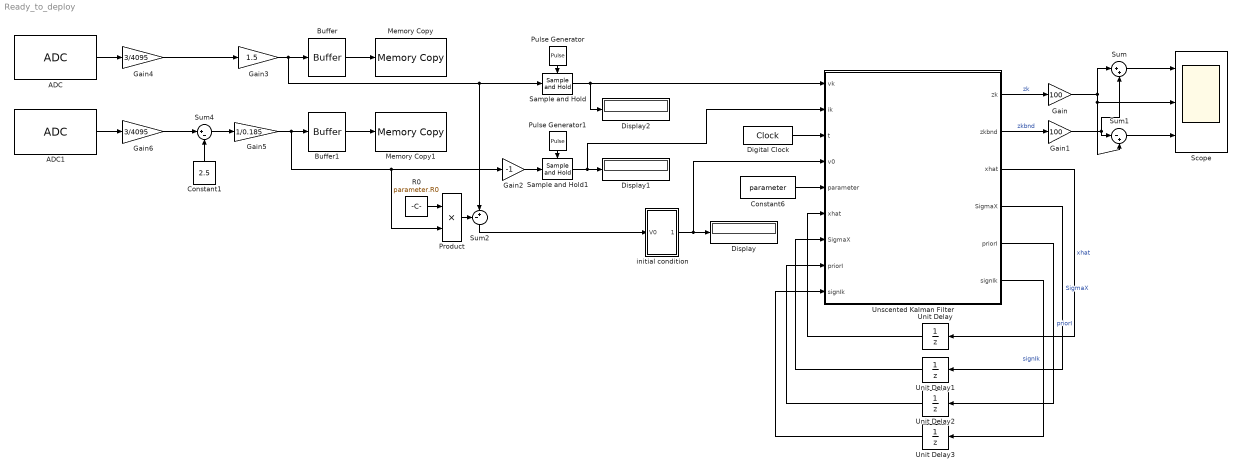
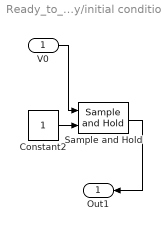
== matlab function Ready_to_deploy/Unscented Kalman Filter ==
function [zk,zkbnd,xhat,SigmaX,priorI,signIk] = iterSPKF(vk,ik,t,v0,parameter,xhat,SigmaX,priorI,signIk)
parameter.deltat=1e-1;
SigmaX0 = diag([1e-6 1e-8 2e-4]);
SigmaV = 2e-1;
SigmaW = 2e-1;
Snoise = chol(blkdiag(SigmaW,SigmaV),'lower');
irk0 = 0;
hk0 = 0;
zkInd = 1;
irkInd = 2;
hkInd = 3;
ocv=parameter.ocv;
soc=parameter.soc;
Nx = 3;
Nw = 1;
Nv = 1;
Na = Nx+Nw+Nv;
h = sqrt(3);
alpha1 = (h*h-Na)/(h*h);
alpha2 = 1/(2*h*h);
alpham = [alpha1; alpha2*ones(2*Na,1)];
alphac = alpham;
RC      = parameter.RC;
G       = parameter.G;
Q       = parameter.Q;
deltat  = parameter.deltat;
R0      = parameter.R0;
R       = parameter.R;
M0      = parameter.M0;
M       = parameter.M;
zkInd   = parameter.zkInd;
irkInd  = parameter.irkInd;
hkInd   = parameter.hkInd;

eta     = 1;
if ik<0 
ik=ik*eta;
end

if t<1e-4
j1=find(min(abs(ocv-v0))==abs(ocv-v0));
j=j1(1,:);
SOC0 = soc(j);
xhat = [SOC0;irk0;hk0];
SigmaX = SigmaX0;
priorI = 0;
signIk = 0;
end

I       =  priorI;
if abs(ik)>Q/100
signIk = sign(ik);
end
xhata = [xhat; zeros([Nw+Nv 1])];
sigmaXa = chol(SigmaX,'lower');
sigmaXa= blkdiag(sigmaXa,Snoise);
Xa = xhata(:,ones([1 2*Na+1])) + h*[zeros([Na 1]),sigmaXa,-sigmaXa];
Xx = stateEqn(Xa(1:Nx,:),I,Xa(Nx+1:Nx+Nw,:),parameter);
xhat = Xx*alpham;
Xs = Xx - xhat(:,ones([1 2*Na+1]));
SigmaX = Xs*diag(alphac)*Xs';
I = ik;
yk = vk;
Y = outputEqn(Xx,I,Xa(5,:),signIk,parameter);
yhat = Y*alpham;
Ys = Y - yhat(:,ones([1 2*Na+1]));
SigmaXY = Xs*diag(alphac)*Ys';
SigmaY = Ys*diag(alphac)*Ys';
L = SigmaXY/SigmaY;
ytelda = yk - yhat;
xhat = xhat + L*ytelda;
xhat(hkInd) = min(0.99,max(-0.99,xhat(hkInd)));
SigmaX = SigmaX - L*SigmaY*L';
priorI = ik;
zk = xhat(zkInd);
zkbnd = 3*sqrt(SigmaX(zkInd,zkInd));
function xnew = stateEqn(xold,current,xnoise,parameter)
current = current + xnoise;
RC      = parameter.RC;
G       = parameter.G;
Q       = parameter.Q;
deltat  = parameter.deltat;
zkInd   = parameter.zkInd;
irkInd  = parameter.irkInd;
hkInd   = parameter.hkInd;
Ah = exp(-abs(current*G*deltat/(3600*Q)));
xnew = 0*xold;
xnew(irkInd,:) = RC*xold(irkInd,:) + (1-RC)*current;
xnew(hkInd,:) = Ah.*xold(hkInd,:) + (Ah-1).*sign(current);
xnew(zkInd,:) = xold(zkInd,:) - current*deltat/(3600*Q);
end
function y = outputEqn(x,current,ynoise,signIk,parameter)
soc     = parameter.soc;
ocv     = parameter.ocv;
R0      = parameter.R0;
R       = parameter.R;
M0      = parameter.M0;
M       = parameter.M;
zkInd   = parameter.zkInd;
irkInd  = parameter.irkInd;
hkInd   = parameter.hkInd;
i = zeros(11,1);
for k=1:11
i2=find(min(abs(soc-x(zkInd,k)*ones(length(soc),1)))==abs(soc-x(zkInd,k)*ones(length(soc),1)));
i2(1)=min(1,max(length(soc),i2(1)));
i(k,1)=i2(1,1);
end
y = ocv(i)' - R * x(irkInd,:) - R0 * current + M * x(hkInd,:) + M0 * signIk + ynoise;
end
end

/*
 * File: Ready_to_deploy.c
 *
 * Code generated for Simulink model 'Ready_to_deploy'.
 *
 * Model version                  : 1.108
 * Simulink Coder version         : 9.3 (R2020a) 18-Nov-2019
 * C/C++ source code generated on : Tue May 11 03:15:02 2021
 *
 * Target selection: ert.tlc
 * Embedded hardware selection: Texas Instruments->C2000
 * Code generation objectives: Unspecified
 * Validation result: Not run
 */

#include "Ready_to_deploy.h"
#include "Ready_to_deploy_private.h"

/* Block signals (default storage) */
B_Ready_to_deploy_T Ready_to_deploy_B;

/* Block states (default storage) */
DW_Ready_to_deploy_T Ready_to_deploy_DW;

/* Previous zero-crossings (trigger) states */
PrevZCX_Ready_to_deploy_T Ready_to_deploy_PrevZCX;

/* Real-time model */
RT_MODEL_Ready_to_deploy_T Ready_to_deploy_M_;
RT_MODEL_Ready_to_deploy_T *const Ready_to_deploy_M = &Ready_to_deploy_M_;

/* Forward declaration for local functions */
static void Ready_to_deploy_abs(const real_T x[602], real_T y[602]);
static void Ready_to_deploy_diag(const real_T v[3], real_T d[9]);
static void Ready_to_deploy_blkdiag(const real_T varargin_1[9], const real_T
  varargin_2[4], real_T y[25]);
static void Ready_to_deploy_stateEqn(coder_internal_ref_Ready_to_d_T *RC,
  coder_internal_ref_Ready_to_d_T *G, coder_internal_ref_Ready_to_d_T *Q,
  coder_internal_ref_Ready_to_d_T *deltat, coder_internal_ref_Ready_to_d_T
  *zkInd, coder_internal_ref_Ready_to_d_T *irkInd,
  coder_internal_ref_Ready_to_d_T *hkInd, const real_T xold[33], real_T current,
  const real_T xnoise[11], real_T parameter_RC, real_T parameter_G, real_T
  parameter_Q, real_T parameter_zkInd, real_T parameter_irkInd, real_T
  parameter_hkInd, real_T xnew[33]);
static void Ready_to_deploy_outputEqn(coder_internal_ref_1_Ready_to_T *soc,
  coder_internal_ref_1_Ready_to_T *ocv, coder_internal_ref_Ready_to_d_T *R0,
  coder_internal_ref_Ready_to_d_T *R, coder_internal_ref_Ready_to_d_T *M0,
  coder_internal_ref_Ready_to_d_T *M, coder_internal_ref_Ready_to_d_T *zkInd,
  coder_internal_ref_Ready_to_d_T *irkInd, coder_internal_ref_Ready_to_d_T
  *hkInd, const real_T x[33], real_T current, const real_T ynoise[11], real_T
  signIk, const parameter_bus *parameter, real_T y[11]);
static void rate_monotonic_scheduler(void);
uint16_T MW_adcAInitFlag = 0;
uint16_T MW_adcCInitFlag = 0;

/*
 * Set which subrates need to run this base step (base rate always runs).
 * This function must be called prior to calling the model step function
 * in order to "remember" which rates need to run this base step.  The
 * buffering of events allows for overlapping preemption.
 */
void Ready_to_deploy_SetEventsForThisBaseStep(boolean_T *eventFlags)
{
  /* Task runs when its counter is zero, computed via rtmStepTask macro */
  eventFlags[1] = ((boolean_T)rtmStepTask(Ready_to_deploy_M, 1));
  eventFlags[2] = ((boolean_T)rtmStepTask(Ready_to_deploy_M, 2));
  eventFlags[3] = ((boolean_T)rtmStepTask(Ready_to_deploy_M, 3));
  eventFlags[4] = ((boolean_T)rtmStepTask(Ready_to_deploy_M, 4));
}

/*
 *   This function updates active task flag for each subrate
 * and rate transition flags for tasks that exchange data.
 * The function assumes rate-monotonic multitasking scheduler.
 * The function must be called at model base rate so that
 * the generated code self-manages all its subrates and rate
 * transition flags.
 */
static void rate_monotonic_scheduler(void)
{
  /* To ensure a deterministic data transfer between two rates,
   * data is transferred at the priority of a fast task and the frequency
   * of the slow task.  The following flags indicate when the data transfer
   * happens.  That is, a rate interaction flag is set true when both rates
   * will run, and false otherwise.
   */

  /* tid 0 shares data with slower tid rates: 1, 2 */
  Ready_to_deploy_M->Timing.RateInteraction.TID0_1 =
    (Ready_to_deploy_M->Timing.TaskCounters.TID[1] == 0);
  Ready_to_deploy_M->Timing.RateInteraction.TID0_2 =
    (Ready_to_deploy_M->Timing.TaskCounters.TID[2] == 0);

  /* tid 1 shares data with slower tid rates: 2, 4 */
  if (Ready_to_deploy_M->Timing.TaskCounters.TID[1] == 0) {
    Ready_to_deploy_M->Timing.RateInteraction.TID1_2 =
      (Ready_to_deploy_M->Timing.TaskCounters.TID[2] == 0);
    Ready_to_deploy_M->Timing.RateInteraction.TID1_4 =
      (Ready_to_deploy_M->Timing.TaskCounters.TID[4] == 0);
  }

  /* tid 2 shares data with slower tid rate: 4 */
  if (Ready_to_deploy_M->Timing.TaskCounters.TID[2] == 0) {
    Ready_to_deploy_M->Timing.RateInteraction.TID2_4 =
      (Ready_to_deploy_M->Timing.TaskCounters.TID[4] == 0);
  }

  /* Compute which subrates run during the next base time step.  Subrates
   * are an integer multiple of the base rate counter.  Therefore, the subtask
   * counter is reset when it reaches its limit (zero means run).
   */
  (Ready_to_deploy_M->Timing.TaskCounters.TID[1])++;
  if ((Ready_to_deploy_M->Timing.TaskCounters.TID[1]) > 9) {/* Sample time: [0.001s, 0.0s] */
    Ready_to_deploy_M->Timing.TaskCounters.TID[1] = 0;
  }

  (Ready_to_deploy_M->Timing.TaskCounters.TID[2])++;
  if ((Ready_to_deploy_M->Timing.TaskCounters.TID[2]) > 999) {/* Sample time: [0.1s, 0.0s] */
    Ready_to_deploy_M->Timing.TaskCounters.TID[2] = 0;
  }

  (Ready_to_deploy_M->Timing.TaskCounters.TID[3])++;
  if ((Ready_to_deploy_M->Timing.TaskCounters.TID[3]) > 4999) {/* Sample time: [0.5s, 0.0s] */
    Ready_to_deploy_M->Timing.TaskCounters.TID[3] = 0;
  }

  (Ready_to_deploy_M->Timing.TaskCounters.TID[4])++;
  if ((Ready_to_deploy_M->Timing.TaskCounters.TID[4]) > 35999999) {/* Sample time: [3600.0s, 0.0s] */
    Ready_to_deploy_M->Timing.TaskCounters.TID[4] = 0;
  }
}

/* Function for MATLAB Function: '<Root>/Unscented Kalman Filter' */
static void Ready_to_deploy_abs(const real_T x[602], real_T y[602])
{
  int16_T k;
  for (k = 0; k < 602; k++) {
    y[k] = fabs(x[k]);
  }
}

/* Function for MATLAB Function: '<Root>/Unscented Kalman Filter' */
static void Ready_to_deploy_diag(const real_T v[3], real_T d[9])
{
  int16_T i;
  for (i = 0; i < 9; i++) {
    d[i] = 0.0;
  }

  d[0] = v[0];
  d[4] = v[1];
  d[8] = v[2];
}

/* Function for MATLAB Function: '<Root>/Unscented Kalman Filter' */
static void Ready_to_deploy_blkdiag(const real_T varargin_1[9], const real_T
  varargin_2[4], real_T y[25])
{
  int16_T i;
  memset(&y[0], 0, 25U * sizeof(real_T));
  for (i = 0; i < 3; i++) {
    y[5 * i] = varargin_1[3 * i];
    y[5 * i + 1] = varargin_1[3 * i + 1];
    y[5 * i + 2] = varargin_1[3 * i + 2];
  }

  y[18] = varargin_2[0];
  y[19] = varargin_2[1];
  y[23] = varargin_2[2];
  y[24] = varargin_2[3];
}

/* Function for MATLAB Function: '<Root>/Unscented Kalman Filter' */
static void Ready_to_deploy_stateEqn(coder_internal_ref_Ready_to_d_T *RC,
  coder_internal_ref_Ready_to_d_T *G, coder_internal_ref_Ready_to_d_T *Q,
  coder_internal_ref_Ready_to_d_T *deltat, coder_internal_ref_Ready_to_d_T
  *zkInd, coder_internal_ref_Ready_to_d_T *irkInd,
  coder_internal_ref_Ready_to_d_T *hkInd, const real_T xold[33], real_T current,
  const real_T xnoise[11], real_T parameter_RC, real_T parameter_G, real_T
  parameter_Q, real_T parameter_zkInd, real_T parameter_irkInd, real_T
  parameter_hkInd, real_T xnew[33])
{
  real_T Ah[11];
  real_T b_current[11];
  int16_T k;
  real_T b_current_0;
  int16_T irkInd_tmp;
  int16_T hkInd_tmp;
  real_T tmp;
  int16_T zkInd_tmp;
  RC->contents = parameter_RC;
  G->contents = parameter_G;
  Q->contents = parameter_Q;
  deltat->contents = 0.1;
  zkInd->contents = parameter_zkInd;
  irkInd->contents = parameter_irkInd;
  hkInd->contents = parameter_hkInd;
  tmp = 3600.0 * Q->contents;
  for (k = 0; k < 11; k++) {
    b_current_0 = current + xnoise[k];
    b_current[k] = b_current_0;
    Ah[k] = exp(-fabs(b_current_0 * G->contents * deltat->contents / tmp));
  }

  for (k = 0; k < 33; k++) {
    xnew[k] = 0.0 * xold[k];
  }

  irkInd_tmp = (int16_T)irkInd->contents;
  hkInd_tmp = (int16_T)hkInd->contents;
  zkInd_tmp = (int16_T)zkInd->contents;
  for (k = 0; k < 11; k++) {
    xnew[(irkInd_tmp + 3 * k) - 1] = xold[(3 * k + irkInd_tmp) - 1] *
      RC->contents + (1.0 - RC->contents) * b_current[k];
    if (b_current[k] < 0.0) {
      b_current_0 = -1.0;
    } else if (b_current[k] > 0.0) {
      b_current_0 = 1.0;
    } else if (b_current[k] == 0.0) {
      b_current_0 = 0.0;
    } else {
      b_current_0 = (rtNaN);
    }

    xnew[(hkInd_tmp + 3 * k) - 1] = xold[(3 * k + hkInd_tmp) - 1] * Ah[k] +
      (Ah[k] - 1.0) * b_current_0;
    xnew[(zkInd_tmp + 3 * k) - 1] = xold[(3 * k + zkInd_tmp) - 1] - b_current[k]
      * deltat->contents / tmp;
  }
}

/* Function for MATLAB Function: '<Root>/Unscented Kalman Filter' */
static void Ready_to_deploy_outputEqn(coder_internal_ref_1_Ready_to_T *soc,
  coder_internal_ref_1_Ready_to_T *ocv, coder_internal_ref_Ready_to_d_T *R0,
  coder_internal_ref_Ready_to_d_T *R, coder_internal_ref_Ready_to_d_T *M0,
  coder_internal_ref_Ready_to_d_T *M, coder_internal_ref_Ready_to_d_T *zkInd,
  coder_internal_ref_Ready_to_d_T *irkInd, coder_internal_ref_Ready_to_d_T
  *hkInd, const real_T x[33], real_T current, const real_T ynoise[11], real_T
  signIk, const parameter_bus *parameter, real_T y[11])
{
  int16_T k;
  int16_T irkInd_0;
  real_T R0_0;
  int16_T hkInd_0;
  real_T M0_0;
  memcpy(&soc->contents[0], &parameter->soc[0], 602U * sizeof(real_T));
  memcpy(&ocv->contents[0], &parameter->ocv[0], 602U * sizeof(real_T));
  R0->contents = parameter->R0;
  R->contents = parameter->R;
  M0->contents = parameter->M0;
  M->contents = parameter->M;
  zkInd->contents = parameter->zkInd;
  irkInd->contents = parameter->irkInd;
  hkInd->contents = parameter->hkInd;
  irkInd_0 = (int16_T)irkInd->contents;
  R0_0 = R0->contents * current;
  hkInd_0 = (int16_T)hkInd->contents;
  M0_0 = M0->contents * signIk;
  for (k = 0; k < 11; k++) {
    y[k] = ((((ocv->contents[0] - x[(3 * k + irkInd_0) - 1] * R->contents) -
              R0_0) + x[(3 * k + hkInd_0) - 1] * M->contents) + M0_0) + ynoise[k];
  }
}

/* Model step function for TID0 */
void Ready_to_deploy_step0(void)       /* Sample time: [0.0001s, 0.0s] */
{
  real_T rtb_PulseGenerator;
  ZCEventType zcEvent;

  {                                    /* Sample time: [0.0001s, 0.0s] */
    rate_monotonic_scheduler();
  }

  /* DiscretePulseGenerator: '<Root>/Pulse Generator' */
  rtb_PulseGenerator = (Ready_to_deploy_DW.clockTickCounter <
                        Ready_to_deploy_P.PulseGenerator_Duty) &&
    (Ready_to_deploy_DW.clockTickCounter >= 0L) ?
    Ready_to_deploy_P.PulseGenerator_Amp : 0.0;
  if (Ready_to_deploy_DW.clockTickCounter >=
      Ready_to_deploy_P.PulseGenerator_Period - 1.0) {
    Ready_to_deploy_DW.clockTickCounter = 0L;
  } else {
    Ready_to_deploy_DW.clockTickCounter++;
  }

  /* End of DiscretePulseGenerator: '<Root>/Pulse Generator' */

  /* RateTransition generated from: '<Root>/Sample and Hold' */
  if (Ready_to_deploy_M->Timing.RateInteraction.TID0_1) {
    Ready_to_deploy_B.TmpRTBAtSampleandHoldInport1 =
      Ready_to_deploy_DW.TmpRTBAtSampleandHoldInport1_Bu;
  }

  /* End of RateTransition generated from: '<Root>/Sample and Hold' */

  /* Outputs for Triggered SubSystem: '<Root>/Sample and Hold' incorporates:
   *  TriggerPort: '<S1>/Trigger'
   */
  zcEvent = rt_ZCFcn(RISING_ZERO_CROSSING,
                     &Ready_to_deploy_PrevZCX.SampleandHold_Trig_ZCE,
                     (rtb_PulseGenerator));
  if (zcEvent != NO_ZCEVENT) {
    /* Inport: '<S1>/In' */
    Ready_to_deploy_B.In_i = Ready_to_deploy_B.TmpRTBAtSampleandHoldInport1;
  }

  /* End of Outputs for SubSystem: '<Root>/Sample and Hold' */

  /* RateTransition generated from: '<Root>/Unscented Kalman Filter' */
  if (Ready_to_deploy_M->Timing.RateInteraction.TID0_2) {
    Ready_to_deploy_DW.TmpRTBAtUnscentedKalmanFilterIn = Ready_to_deploy_B.In_i;
  }

  /* End of RateTransition generated from: '<Root>/Unscented Kalman Filter' */

  /* DiscretePulseGenerator: '<Root>/Pulse Generator1' */
  rtb_PulseGenerator = (Ready_to_deploy_DW.clockTickCounter_a <
                        Ready_to_deploy_P.PulseGenerator1_Duty) &&
    (Ready_to_deploy_DW.clockTickCounter_a >= 0L) ?
    Ready_to_deploy_P.PulseGenerator1_Amp : 0.0;
  if (Ready_to_deploy_DW.clockTickCounter_a >=
      Ready_to_deploy_P.PulseGenerator1_Period - 1.0) {
    Ready_to_deploy_DW.clockTickCounter_a = 0L;
  } else {
    Ready_to_deploy_DW.clockTickCounter_a++;
  }

  /* End of DiscretePulseGenerator: '<Root>/Pulse Generator1' */

  /* RateTransition generated from: '<Root>/Sample and Hold1' */
  if (Ready_to_deploy_M->Timing.RateInteraction.TID0_1) {
    Ready_to_deploy_B.TmpRTBAtSampleandHold1Inport1 =
      Ready_to_deploy_DW.TmpRTBAtSampleandHold1Inport1_B;
  }

  /* End of RateTransition generated from: '<Root>/Sample and Hold1' */

  /* Outputs for Triggered SubSystem: '<Root>/Sample and Hold1' incorporates:
   *  TriggerPort: '<S2>/Trigger'
   */
  zcEvent = rt_ZCFcn(RISING_ZERO_CROSSING,
                     &Ready_to_deploy_PrevZCX.SampleandHold1_Trig_ZCE,
                     (rtb_PulseGenerator));
  if (zcEvent != NO_ZCEVENT) {
    /* Inport: '<S2>/In' */
    Ready_to_deploy_B.In = Ready_to_deploy_B.TmpRTBAtSampleandHold1Inport1;
  }

  /* End of Outputs for SubSystem: '<Root>/Sample and Hold1' */

  /* RateTransition generated from: '<Root>/Unscented Kalman Filter' */
  if (Ready_to_deploy_M->Timing.RateInteraction.TID0_2) {
    Ready_to_deploy_DW.TmpRTBAtUnscentedKalmanFilter_o = Ready_to_deploy_B.In;
  }

  /* End of RateTransition generated from: '<Root>/Unscented Kalman Filter' */
}

/* Model step function for TID1 */
void Ready_to_deploy_step1(void)       /* Sample time: [0.001s, 0.0s] */
{
  int32_T i;
  int32_T offsetFromMemBase;
  int32_T nSamps;
  real_T rtb_Gain2;
  real_T Gain5;

  /* S-Function (c2802xadc): '<Root>/ADC' */
  {
    /*  Internal Reference Voltage : Fixed scale 0 to 3.3 V range.  */
    /*  External Reference Voltage : Allowable ranges of VREFHI(ADCINA0) = 3.3 and VREFLO(tied to ground) = 0  */
    AdcaRegs.ADCSOCFRC1.bit.SOC0 = 1;

    /* Wait for the period of Sampling window and EOC result to be latched after trigger */
    asm(" RPT #75 || NOP");
    Ready_to_deploy_B.ADC = (AdcaResultRegs.ADCRESULT0);
  }

  /* S-Function (c2802xadc): '<Root>/ADC1' */
  {
    /*  Internal Reference Voltage : Fixed scale 0 to 3.3 V range.  */
    /*  External Reference Voltage : Allowable ranges of VREFHI(ADCINA0) = 3.3 and VREFLO(tied to ground) = 0  */
    AdccRegs.ADCSOCFRC1.bit.SOC0 = 1;

    /* Wait for the period of Sampling window and EOC result to be latched after trigger */
    asm(" RPT #75 || NOP");
    Ready_to_deploy_B.ADC1 = (AdccResultRegs.ADCRESULT0);
  }

  /* RateTransition generated from: '<Root>/Sum4' */
  if (Ready_to_deploy_M->Timing.RateInteraction.TID1_2) {
    Ready_to_deploy_B.TmpRTBAtSum4Inport2 =
      Ready_to_deploy_DW.TmpRTBAtSum4Inport2_Buffer0;
  }

  /* End of RateTransition generated from: '<Root>/Sum4' */

  /* Gain: '<Root>/Gain5' incorporates:
   *  Gain: '<Root>/Gain6'
   *  Sum: '<Root>/Sum4'
   */
  Gain5 = (Ready_to_deploy_P.Gain6_Gain * Ready_to_deploy_B.ADC1 -
           Ready_to_deploy_B.TmpRTBAtSum4Inport2) * Ready_to_deploy_P.Gain5_Gain;

  /* Buffer: '<Root>/Buffer1' */
  nSamps = 1000L;
  offsetFromMemBase = Ready_to_deploy_DW.Buffer1_inBufPtrIdx;
  if (1000L - Ready_to_deploy_DW.Buffer1_inBufPtrIdx <= 1L) {
    for (i = 0L; i < 1000L - Ready_to_deploy_DW.Buffer1_inBufPtrIdx; i++) {
      Ready_to_deploy_DW.Buffer1_CircBuf[Ready_to_deploy_DW.Buffer1_inBufPtrIdx
        + i] = Gain5;
    }

    offsetFromMemBase = 0L;
    nSamps = Ready_to_deploy_DW.Buffer1_inBufPtrIdx;
  }

  for (i = 0L; i < nSamps - 999L; i++) {
    Ready_to_deploy_DW.Buffer1_CircBuf[offsetFromMemBase + i] = Gain5;
  }

  Ready_to_deploy_DW.Buffer1_inBufPtrIdx++;
  if (Ready_to_deploy_DW.Buffer1_inBufPtrIdx >= 1000L) {
    Ready_to_deploy_DW.Buffer1_inBufPtrIdx -= 1000L;
  }

  /* End of Buffer: '<Root>/Buffer1' */

  /* Gain: '<Root>/Gain2' */
  rtb_Gain2 = Ready_to_deploy_P.Gain2_Gain * Gain5;

  /* RateTransition generated from: '<Root>/Sample and Hold1' */
  Ready_to_deploy_DW.TmpRTBAtSampleandHold1Inport1_B = rtb_Gain2;

  /* RateTransition generated from: '<Root>/Product' */
  if (Ready_to_deploy_M->Timing.RateInteraction.TID1_2) {
    Ready_to_deploy_B.TmpRTBAtProductInport1 =
      Ready_to_deploy_DW.TmpRTBAtProductInport1_Buffer0;
  }

  /* End of RateTransition generated from: '<Root>/Product' */

  /* Gain: '<Root>/Gain3' incorporates:
   *  Gain: '<Root>/Gain4'
   */
  rtb_Gain2 = Ready_to_deploy_P.Gain4_Gain * Ready_to_deploy_B.ADC *
    Ready_to_deploy_P.Gain3_Gain;

  /* RateTransition generated from: '<S6>/Switch' incorporates:
   *  Product: '<Root>/Product'
   *  Sum: '<Root>/Sum2'
   */
  if (Ready_to_deploy_M->Timing.RateInteraction.TID1_4) {
    Ready_to_deploy_DW.TmpRTBAtSwitchInport1_Buffer = rtb_Gain2 -
      Ready_to_deploy_B.TmpRTBAtProductInport1 * Gain5;
  }

  /* End of RateTransition generated from: '<S6>/Switch' */

  /* Buffer: '<Root>/Buffer' */
  nSamps = 1000L;
  offsetFromMemBase = Ready_to_deploy_DW.Buffer_inBufPtrIdx;
  if (1000L - Ready_to_deploy_DW.Buffer_inBufPtrIdx <= 1L) {
    for (i = 0L; i < 1000L - Ready_to_deploy_DW.Buffer_inBufPtrIdx; i++) {
      Ready_to_deploy_DW.Buffer_CircBuf[Ready_to_deploy_DW.Buffer_inBufPtrIdx +
        i] = rtb_Gain2;
    }

    offsetFromMemBase = 0L;
    nSamps = Ready_to_deploy_DW.Buffer_inBufPtrIdx;
  }

  for (i = 0L; i < nSamps - 999L; i++) {
    Ready_to_deploy_DW.Buffer_CircBuf[offsetFromMemBase + i] = rtb_Gain2;
  }

  Ready_to_deploy_DW.Buffer_inBufPtrIdx++;
  if (Ready_to_deploy_DW.Buffer_inBufPtrIdx >= 1000L) {
    Ready_to_deploy_DW.Buffer_inBufPtrIdx -= 1000L;
  }

  /* End of Buffer: '<Root>/Buffer' */

  /* RateTransition generated from: '<Root>/Sample and Hold' */
  Ready_to_deploy_DW.TmpRTBAtSampleandHoldInport1_Bu = rtb_Gain2;
}

/* Model step function for TID2 */
void Ready_to_deploy_step2(void)       /* Sample time: [0.1s, 0.0s] */
{
  coder_internal_ref_Ready_to_d_T M;
  coder_internal_ref_Ready_to_d_T M0;
  coder_internal_ref_Ready_to_d_T R;
  coder_internal_ref_Ready_to_d_T R0;
  coder_internal_ref_Ready_to_d_T deltat;
  coder_internal_ref_Ready_to_d_T Q;
  coder_internal_ref_Ready_to_d_T G;
  coder_internal_ref_Ready_to_d_T RC;
  coder_internal_ref_Ready_to_d_T hkInd;
  coder_internal_ref_Ready_to_d_T irkInd;
  coder_internal_ref_Ready_to_d_T zkInd;
  real_T Y[11];
  real_T L[3];
  real_T ytelda;
  real_T sigmaXa[25];
  int16_T idxAjj;
  real_T ssq;
  int16_T b_idx;
  int16_T k;
  int16_T iy;
  int16_T e;
  int16_T ia;
  int16_T b_ix;
  int16_T b_iy;
  int16_T d_k;
  real_T tmp[5];
  real_T Xa[11];
  real_T Xx[9];
  real_T L_0[9];
  real_T L_1;
  static const real_T g[4] = { 0.44721359549995793, 0.0, 0.0,
    0.44721359549995793 };

  static const real_T h[3] = { 1.0E-6, 1.0E-8, 0.0002 };

  static const real_T b_b[11] = { -0.666666666666667, 0.16666666666666669,
    0.16666666666666669, 0.16666666666666669, 0.16666666666666669,
    0.16666666666666669, 0.16666666666666669, 0.16666666666666669,
    0.16666666666666669, 0.16666666666666669, 0.16666666666666669 };

  static const real_T c_b[121] = { -0.666666666666667, 0.0, 0.0, 0.0, 0.0, 0.0,
    0.0, 0.0, 0.0, 0.0, 0.0, 0.0, 0.16666666666666669, 0.0, 0.0, 0.0, 0.0, 0.0,
    0.0, 0.0, 0.0, 0.0, 0.0, 0.0, 0.16666666666666669, 0.0, 0.0, 0.0, 0.0, 0.0,
    0.0, 0.0, 0.0, 0.0, 0.0, 0.0, 0.16666666666666669, 0.0, 0.0, 0.0, 0.0, 0.0,
    0.0, 0.0, 0.0, 0.0, 0.0, 0.0, 0.16666666666666669, 0.0, 0.0, 0.0, 0.0, 0.0,
    0.0, 0.0, 0.0, 0.0, 0.0, 0.0, 0.16666666666666669, 0.0, 0.0, 0.0, 0.0, 0.0,
    0.0, 0.0, 0.0, 0.0, 0.0, 0.0, 0.16666666666666669, 0.0, 0.0, 0.0, 0.0, 0.0,
    0.0, 0.0, 0.0, 0.0, 0.0, 0.0, 0.16666666666666669, 0.0, 0.0, 0.0, 0.0, 0.0,
    0.0, 0.0, 0.0, 0.0, 0.0, 0.0, 0.16666666666666669, 0.0, 0.0, 0.0, 0.0, 0.0,
    0.0, 0.0, 0.0, 0.0, 0.0, 0.0, 0.16666666666666669, 0.0, 0.0, 0.0, 0.0, 0.0,
    0.0, 0.0, 0.0, 0.0, 0.0, 0.0, 0.16666666666666669 };

  boolean_T exitg1;

  /* RateTransition generated from: '<Root>/Unscented Kalman Filter' */
  if (Ready_to_deploy_M->Timing.RateInteraction.TID2_4) {
    Ready_to_deploy_B.TmpRTBAtUnscentedKalmanFilterIn =
      Ready_to_deploy_DW.TmpRTBAtUnscentedKalmanFilter_b;
  }

  /* End of RateTransition generated from: '<Root>/Unscented Kalman Filter' */

  /* MATLAB Function: '<Root>/Unscented Kalman Filter' incorporates:
   *  Constant: '<Root>/Constant6'
   *  DigitalClock: '<Root>/Digital Clock'
   *  RateTransition generated from: '<Root>/Unscented Kalman Filter'
   *  UnitDelay: '<Root>/Unit Delay'
   *  UnitDelay: '<Root>/Unit Delay1'
   *  UnitDelay: '<Root>/Unit Delay2'
   * */
  Ready_to_deploy_B.parameter = Ready_to_deploy_P.parameter;
  Ready_to_deploy_B.parameter.deltat = 0.1;
  memcpy(&Ready_to_deploy_B.ocv.contents[0], &Ready_to_deploy_P.parameter.ocv[0],
         602U * sizeof(real_T));
  memcpy(&Ready_to_deploy_B.soc.contents[0], &Ready_to_deploy_P.parameter.soc[0],
         602U * sizeof(real_T));
  RC.contents = Ready_to_deploy_P.parameter.RC;
  G.contents = Ready_to_deploy_P.parameter.G;
  Q.contents = Ready_to_deploy_P.parameter.Q;
  deltat.contents = 0.1;
  R0.contents = Ready_to_deploy_P.parameter.R0;
  R.contents = Ready_to_deploy_P.parameter.R;
  M0.contents = Ready_to_deploy_P.parameter.M0;
  M.contents = Ready_to_deploy_P.parameter.M;
  zkInd.contents = Ready_to_deploy_P.parameter.zkInd;
  irkInd.contents = Ready_to_deploy_P.parameter.irkInd;
  hkInd.contents = Ready_to_deploy_P.parameter.hkInd;
  if (((Ready_to_deploy_M->Timing.clockTick2) * 0.1) < 0.0001) {
    for (b_idx = 0; b_idx < 602; b_idx++) {
      Ready_to_deploy_B.dv[b_idx] = Ready_to_deploy_P.parameter.ocv[b_idx] -
        Ready_to_deploy_B.TmpRTBAtUnscentedKalmanFilterIn;
    }

    Ready_to_deploy_abs(Ready_to_deploy_B.dv, Ready_to_deploy_B.varargin_1_tmp);
    if (!rtIsNaN(Ready_to_deploy_B.varargin_1_tmp[0])) {
      b_idx = 1;
    } else {
      b_idx = 0;
      k = 2;
      exitg1 = false;
      while ((!exitg1) && (k < 603)) {
        if (!rtIsNaN(Ready_to_deploy_B.varargin_1_tmp[k - 1])) {
          b_idx = k;
          exitg1 = true;
        } else {
          k++;
        }
      }
    }

    if (b_idx == 0) {
      ssq = Ready_to_deploy_B.varargin_1_tmp[0];
    } else {
      ssq = Ready_to_deploy_B.varargin_1_tmp[b_idx - 1];
      while (b_idx + 1 < 603) {
        if (ssq > Ready_to_deploy_B.varargin_1_tmp[b_idx]) {
          ssq = Ready_to_deploy_B.varargin_1_tmp[b_idx];
        }

        b_idx++;
      }
    }

    b_idx = 0;
    k = 0;
    exitg1 = false;
    while ((!exitg1) && (k < 602)) {
      if (ssq == Ready_to_deploy_B.varargin_1_tmp[k]) {
        b_idx++;
        Ready_to_deploy_B.ii_data[b_idx - 1] = k + 1;
        if (b_idx >= 602) {
          exitg1 = true;
        } else {
          k++;
        }
      } else {
        k++;
      }
    }

    Ready_to_deploy_DW.xhat[0] =
      Ready_to_deploy_P.parameter.soc[Ready_to_deploy_B.ii_data[0] - 1];
    Ready_to_deploy_DW.xhat[1] = 0.0;
    Ready_to_deploy_DW.xhat[2] = 0.0;
    Ready_to_deploy_diag(h, Ready_to_deploy_DW.SigmaX);
    Ready_to_deploy_DW.priorI = 0.0;
    Ready_to_deploy_DW.signIk = 0.0;
  }

  if (fabs(Ready_to_deploy_DW.TmpRTBAtUnscentedKalmanFilter_o) >
      Ready_to_deploy_P.parameter.Q / 100.0) {
    if (Ready_to_deploy_DW.TmpRTBAtUnscentedKalmanFilter_o < 0.0) {
      Ready_to_deploy_DW.signIk = -1.0;
    } else if (Ready_to_deploy_DW.TmpRTBAtUnscentedKalmanFilter_o > 0.0) {
      Ready_to_deploy_DW.signIk = 1.0;
    } else if (Ready_to_deploy_DW.TmpRTBAtUnscentedKalmanFilter_o == 0.0) {
      Ready_to_deploy_DW.signIk = 0.0;
    } else {
      Ready_to_deploy_DW.signIk = (rtNaN);
    }
  }

  b_idx = 0;
  k = 0;
  exitg1 = false;
  while ((!exitg1) && (k < 3)) {
    idxAjj = k * 3 + k;
    ssq = 0.0;
    if (k >= 1) {
      b_ix = k;
      b_iy = k;
      for (d_k = 0; d_k < k; d_k++) {
        ssq += Ready_to_deploy_DW.SigmaX[b_ix] * Ready_to_deploy_DW.SigmaX[b_iy];
        b_ix += 3;
        b_iy += 3;
      }
    }

    ssq = Ready_to_deploy_DW.SigmaX[idxAjj] - ssq;
    if (ssq > 0.0) {
      ssq = sqrt(ssq);
      Ready_to_deploy_DW.SigmaX[idxAjj] = ssq;
      if (k + 1 < 3) {
        if (k != 0) {
          b_ix = k;
          b_iy = ((k - 1) * 3 + k) + 2;
          for (d_k = k + 2; d_k <= b_iy; d_k += 3) {
            ytelda = -Ready_to_deploy_DW.SigmaX[b_ix];
            iy = idxAjj + 1;
            e = (d_k - k) + 1;
            for (ia = d_k; ia <= e; ia++) {
              Ready_to_deploy_DW.SigmaX[iy] += Ready_to_deploy_DW.SigmaX[ia - 1]
                * ytelda;
              iy++;
            }

            b_ix += 3;
          }
        }

        ssq = 1.0 / ssq;
        b_ix = (idxAjj - k) + 3;
        for (idxAjj++; idxAjj < b_ix; idxAjj++) {
          Ready_to_deploy_DW.SigmaX[idxAjj] *= ssq;
        }
      }

      k++;
    } else {
      Ready_to_deploy_DW.SigmaX[idxAjj] = ssq;
      b_idx = k + 1;
      exitg1 = true;
    }
  }

  if (b_idx == 0) {
    b_idx = 4;
  }

  b_idx--;
  for (k = 1; k < b_idx; k++) {
    for (idxAjj = 0; idxAjj < k; idxAjj++) {
      Ready_to_deploy_DW.SigmaX[idxAjj + 3 * k] = 0.0;
    }
  }

  Ready_to_deploy_blkdiag(Ready_to_deploy_DW.SigmaX, g, sigmaXa);
  tmp[0] = Ready_to_deploy_DW.xhat[0];
  tmp[1] = Ready_to_deploy_DW.xhat[1];
  tmp[2] = Ready_to_deploy_DW.xhat[2];
  tmp[3] = 0.0;
  tmp[4] = 0.0;
  for (b_idx = 0; b_idx < 5; b_idx++) {
    Ready_to_deploy_B.dv1[b_idx] = 0.0;
  }

  for (b_idx = 0; b_idx < 25; b_idx++) {
    Ready_to_deploy_B.dv1[b_idx + 5] = 1.7320508075688772 * sigmaXa[b_idx];
    Ready_to_deploy_B.dv1[b_idx + 30] = 1.7320508075688772 * -sigmaXa[b_idx];
  }

  for (b_idx = 0; b_idx < 11; b_idx++) {
    for (k = 0; k < 5; k++) {
      idxAjj = 5 * b_idx + k;
      Ready_to_deploy_B.Xa[idxAjj] = Ready_to_deploy_B.dv1[idxAjj] + tmp[k];
    }

    Ready_to_deploy_B.Xs[3 * b_idx] = Ready_to_deploy_B.Xa[5 * b_idx];
    Ready_to_deploy_B.Xs[3 * b_idx + 1] = Ready_to_deploy_B.Xa[5 * b_idx + 1];
    Ready_to_deploy_B.Xs[3 * b_idx + 2] = Ready_to_deploy_B.Xa[5 * b_idx + 2];
    Xa[b_idx] = Ready_to_deploy_B.Xa[5 * b_idx + 3];
  }

  Ready_to_deploy_stateEqn(&RC, &G, &Q, &deltat, &zkInd, &irkInd, &hkInd,
    Ready_to_deploy_B.Xs, Ready_to_deploy_DW.priorI, Xa,
    Ready_to_deploy_P.parameter.RC, Ready_to_deploy_P.parameter.G,
    Ready_to_deploy_P.parameter.Q, Ready_to_deploy_P.parameter.zkInd,
    Ready_to_deploy_P.parameter.irkInd, Ready_to_deploy_P.parameter.hkInd,
    Ready_to_deploy_B.Xx);
  for (b_idx = 0; b_idx < 3; b_idx++) {
    Ready_to_deploy_DW.xhat[b_idx] = 0.0;
    for (k = 0; k < 11; k++) {
      Ready_to_deploy_DW.xhat[b_idx] += Ready_to_deploy_B.Xx[3 * k + b_idx] *
        b_b[k];
    }
  }

  for (b_idx = 0; b_idx < 11; b_idx++) {
    Ready_to_deploy_B.Xs[3 * b_idx] = Ready_to_deploy_B.Xx[3 * b_idx] -
      Ready_to_deploy_DW.xhat[0];
    k = 3 * b_idx + 1;
    Ready_to_deploy_B.Xs[k] = Ready_to_deploy_B.Xx[k] - Ready_to_deploy_DW.xhat
      [1];
    k = 3 * b_idx + 2;
    Ready_to_deploy_B.Xs[k] = Ready_to_deploy_B.Xx[k] - Ready_to_deploy_DW.xhat
      [2];
    Xa[b_idx] = Ready_to_deploy_B.Xa[5 * b_idx + 4];
  }

  Ready_to_deploy_outputEqn(&Ready_to_deploy_B.soc, &Ready_to_deploy_B.ocv, &R0,
    &R, &M0, &M, &zkInd, &irkInd, &hkInd, Ready_to_deploy_B.Xx,
    Ready_to_deploy_DW.TmpRTBAtUnscentedKalmanFilter_o, Xa,
    Ready_to_deploy_DW.signIk, &Ready_to_deploy_B.parameter, Y);
  ytelda = 0.0;
  for (b_idx = 0; b_idx < 11; b_idx++) {
    ytelda += Y[b_idx] * b_b[b_idx];
  }

  for (b_idx = 0; b_idx < 11; b_idx++) {
    Y[b_idx] -= ytelda;
  }

  ssq = 0.0;
  for (b_idx = 0; b_idx < 11; b_idx++) {
    Xa[b_idx] = 0.0;
    for (k = 0; k < 11; k++) {
      Xa[b_idx] += c_b[11 * b_idx + k] * Y[k];
    }

    ssq += Xa[b_idx] * Y[b_idx];
  }

  ytelda = Ready_to_deploy_DW.TmpRTBAtUnscentedKalmanFilterIn - ytelda;
  for (b_idx = 0; b_idx < 3; b_idx++) {
    L_1 = 0.0;
    for (k = 0; k < 11; k++) {
      idxAjj = b_idx + 3 * k;
      Ready_to_deploy_B.Xx[idxAjj] = 0.0;
      for (b_ix = 0; b_ix < 11; b_ix++) {
        Ready_to_deploy_B.Xx[idxAjj] += Ready_to_deploy_B.Xs[3 * b_ix + b_idx] *
          c_b[11 * k + b_ix];
      }

      L_1 += Ready_to_deploy_B.Xx[idxAjj] * Y[k];
    }

    L_1 /= ssq;
    Ready_to_deploy_DW.xhat[b_idx] += L_1 * ytelda;
    for (k = 0; k < 3; k++) {
      idxAjj = b_idx + 3 * k;
      Xx[idxAjj] = 0.0;
      for (b_ix = 0; b_ix < 11; b_ix++) {
        Xx[idxAjj] += Ready_to_deploy_B.Xx[3 * b_ix + b_idx] *
          Ready_to_deploy_B.Xs[3 * b_ix + k];
      }
    }

    L[b_idx] = L_1;
  }

  b_idx = (int16_T)hkInd.contents - 1;
  if ((-0.99 > Ready_to_deploy_DW.xhat[b_idx]) || rtIsNaN
      (Ready_to_deploy_DW.xhat[b_idx])) {
    ytelda = -0.99;
  } else {
    ytelda = Ready_to_deploy_DW.xhat[b_idx];
  }

  if ((0.99 < ytelda) || rtIsNaN(ytelda)) {
    Ready_to_deploy_DW.xhat[b_idx] = 0.99;
  } else {
    Ready_to_deploy_DW.xhat[b_idx] = ytelda;
  }

  for (b_idx = 0; b_idx < 3; b_idx++) {
    L_0[3 * b_idx] = L[0] * ssq * L[b_idx];
    L_0[3 * b_idx + 1] = L[1] * ssq * L[b_idx];
    L_0[3 * b_idx + 2] = L[2] * ssq * L[b_idx];
  }

  for (b_idx = 0; b_idx < 9; b_idx++) {
    Ready_to_deploy_DW.SigmaX[b_idx] = Xx[b_idx] - L_0[b_idx];
  }

  Ready_to_deploy_DW.priorI = Ready_to_deploy_DW.TmpRTBAtUnscentedKalmanFilter_o;

  /* End of MATLAB Function: '<Root>/Unscented Kalman Filter' */

  /* RateTransition generated from: '<Root>/Sum4' incorporates:
   *  Constant: '<Root>/Constant1'
   */
  Ready_to_deploy_DW.TmpRTBAtSum4Inport2_Buffer0 =
    Ready_to_deploy_P.Constant1_Value;

  /* Constant: '<Root>/R0' */
  ssq = Ready_to_deploy_P.parameter.R0;

  /* RateTransition generated from: '<Root>/Product' */
  Ready_to_deploy_DW.TmpRTBAtProductInport1_Buffer0 = ssq;

  /* RateTransition generated from: '<S6>/Data Type Conversion' incorporates:
   *  Constant: '<S4>/Constant2'
   */
  if (Ready_to_deploy_M->Timing.RateInteraction.TID2_4) {
    Ready_to_deploy_DW.TmpRTBAtDataTypeConversionInpor =
      Ready_to_deploy_P.Constant2_Value;
  }

  /* End of RateTransition generated from: '<S6>/Data Type Conversion' */

  /* Update absolute time */
  /* The "clockTick2" counts the number of times the code of this task has
   * been executed. The resolution of this integer timer is 0.1, which is the step size
   * of the task. Size of "clockTick2" ensures timer will not overflow during the
   * application lifespan selected.
   */
  Ready_to_deploy_M->Timing.clockTick2++;
}

/* Model step function for TID3 */
void Ready_to_deploy_step3(void)       /* Sample time: [0.5s, 0.0s] */
{
  int32_T i;
  int32_T uyIdx;
  int32_T nSampsAtBot;
  int32_T nSamps;

  /* Buffer: '<Root>/Buffer' */
  uyIdx = 0L;
  if (Ready_to_deploy_DW.Buffer_outBufPtrIdx < 0L) {
    Ready_to_deploy_DW.Buffer_outBufPtrIdx += 1000L;
  }

  nSampsAtBot = 1000L - Ready_to_deploy_DW.Buffer_outBufPtrIdx;
  nSamps = 500L;
  if (1000L - Ready_to_deploy_DW.Buffer_outBufPtrIdx <= 500L) {
    for (i = 0L; i < 1000L - Ready_to_deploy_DW.Buffer_outBufPtrIdx; i++) {
      Ready_to_deploy_B.Buffer[i] =
        Ready_to_deploy_DW.Buffer_CircBuf[Ready_to_deploy_DW.Buffer_outBufPtrIdx
        + i];
    }

    uyIdx = 1000L - Ready_to_deploy_DW.Buffer_outBufPtrIdx;
    Ready_to_deploy_DW.Buffer_outBufPtrIdx = 0L;
    nSamps = 500L - nSampsAtBot;
  }

  for (i = 0L; i < nSamps; i++) {
    Ready_to_deploy_B.Buffer[uyIdx + i] =
      Ready_to_deploy_DW.Buffer_CircBuf[Ready_to_deploy_DW.Buffer_outBufPtrIdx +
      i];
  }

  Ready_to_deploy_DW.Buffer_outBufPtrIdx += nSamps;

  /* End of Buffer: '<Root>/Buffer' */

  /* Buffer: '<Root>/Buffer1' */
  uyIdx = 0L;
  if (Ready_to_deploy_DW.Buffer1_outBufPtrIdx < 0L) {
    Ready_to_deploy_DW.Buffer1_outBufPtrIdx += 1000L;
  }

  nSampsAtBot = 1000L - Ready_to_deploy_DW.Buffer1_outBufPtrIdx;
  nSamps = 500L;
  if (1000L - Ready_to_deploy_DW.Buffer1_outBufPtrIdx <= 500L) {
    for (i = 0L; i < 1000L - Ready_to_deploy_DW.Buffer1_outBufPtrIdx; i++) {
      Ready_to_deploy_B.Buffer1[i] =
        Ready_to_deploy_DW.Buffer1_CircBuf[Ready_to_deploy_DW.Buffer1_outBufPtrIdx
        + i];
    }

    uyIdx = 1000L - Ready_to_deploy_DW.Buffer1_outBufPtrIdx;
    Ready_to_deploy_DW.Buffer1_outBufPtrIdx = 0L;
    nSamps = 500L - nSampsAtBot;
  }

  for (i = 0L; i < nSamps; i++) {
    Ready_to_deploy_B.Buffer1[uyIdx + i] =
      Ready_to_deploy_DW.Buffer1_CircBuf[Ready_to_deploy_DW.Buffer1_outBufPtrIdx
      + i];
  }

  Ready_to_deploy_DW.Buffer1_outBufPtrIdx += nSamps;

  /* End of Buffer: '<Root>/Buffer1' */
}

/* Model step function for TID4 */
void Ready_to_deploy_step4(void)       /* Sample time: [3600.0s, 0.0s] */
{
  /* Switch: '<S6>/Switch' incorporates:
   *  DataTypeConversion: '<S6>/Data Type Conversion'
   *  RateTransition generated from: '<S6>/Data Type Conversion'
   *  RateTransition generated from: '<S6>/Switch'
   *  UnitDelay: '<S6>/IC=ic'
   */
  if (Ready_to_deploy_DW.TmpRTBAtDataTypeConversionInpor != 0.0) {
    Ready_to_deploy_DW.ICic_DSTATE =
      Ready_to_deploy_DW.TmpRTBAtSwitchInport1_Buffer;
  }

  /* End of Switch: '<S6>/Switch' */

  /* RateTransition generated from: '<Root>/Unscented Kalman Filter' incorporates:
   *  UnitDelay: '<S6>/IC=ic'
   */
  Ready_to_deploy_DW.TmpRTBAtUnscentedKalmanFilter_b =
    Ready_to_deploy_DW.ICic_DSTATE;
}
